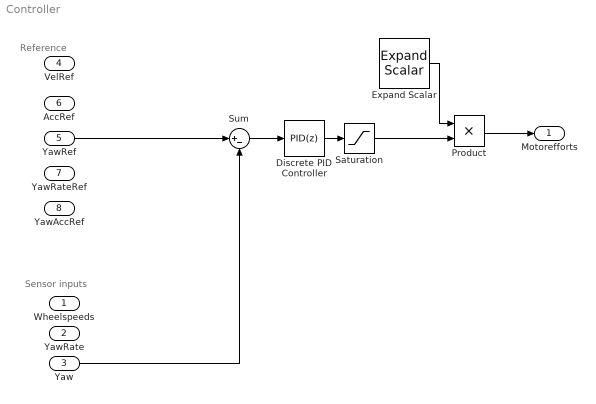
/*
 * Academic License - for use in teaching, academic research, and meeting
 * course requirements at degree granting institutions only.  Not for
 * government, commercial, or other organizational use.
 *
 * File: Controller.c
 *
 * Code generated for Simulink model 'Controller'.
 *
 * Model version                  : 1.2
 * Simulink Coder version         : 24.1 (R2024a) 19-Nov-2023
 * C/C++ source code generated on : Tue Sep 17 13:51:16 2024
 *
 * Target selection: ert.tlc
 * Embedded hardware selection: ARM Compatible->ARM Cortex-M
 * Code generation objectives:
 *    1. Execution efficiency
 *    2. RAM efficiency
 * Validation result: Not run
 */

#include "Controller.h"
#include "rtwtypes.h"

/* Block signals and states (default storage) */
DW rtDW;

/*===========*
 * Constants *
 *===========*/
#define RT_PI                          3.14159265358979323846
#define RT_PIF                         3.1415927F
#define RT_LN_10                       2.30258509299404568402
#define RT_LN_10F                      2.3025851F
#define RT_LOG10E                      0.43429448190325182765
#define RT_LOG10EF                     0.43429449F
#define RT_E                           2.7182818284590452354
#define RT_EF                          2.7182817F

/*
 * UNUSED_PARAMETER(x)
 *   Used to specify that a function parameter (argument) is required but not
 *   accessed by the function body.
 */
#ifndef UNUSED_PARAMETER
#if defined(__LCC__)
#define UNUSED_PARAMETER(x)                                      /* do nothing */
#else

/*
 * This is the semi-ANSI standard way of indicating that an
 * unused function parameter is required.
 */
#define UNUSED_PARAMETER(x)            (void) (x)
#endif
#endif

/* Model step function */
void Controller_step(real32_T arg_Wheelspeeds[4], real32_T arg_YawRate, real32_T
                     arg_Yaw, real32_T arg_VelRef[2], real32_T arg_YawRef,
                     real32_T arg_AccRef[2], real_T arg_YawRateRef, real_T
                     arg_YawAccRef, real32_T arg_Motorefforts[4])
{
  real32_T rtb_FilterCoefficient;
  real32_T rtb_Saturation;
  real32_T rtb_Sum;
  UNUSED_PARAMETER(arg_Wheelspeeds);
  UNUSED_PARAMETER(arg_YawRate);
  UNUSED_PARAMETER(arg_VelRef);
  UNUSED_PARAMETER(arg_AccRef);
  UNUSED_PARAMETER(arg_YawRateRef);
  UNUSED_PARAMETER(arg_YawAccRef);

  /* Sum: '<Root>/Sum' incorporates:
   *  Inport: '<Root>/Yaw'
   *  Inport: '<Root>/YawRef'
   */
  rtb_Sum = arg_YawRef - arg_Yaw;

  /* Gain: '<S38>/Filter Coefficient' incorporates:
   *  DiscreteIntegrator: '<S30>/Filter'
   *  Gain: '<S28>/Derivative Gain'
   *  Sum: '<S30>/SumD'
   */
  rtb_FilterCoefficient = (0.0F * rtb_Sum - rtDW.Filter_DSTATE) * 100.0F;

  /* Sum: '<S44>/Sum' incorporates:
   *  DiscreteIntegrator: '<S35>/Integrator'
   * */
  rtb_Sum += rtDW.Integrator_DSTATE;
  rtb_Saturation = rtb_Sum + rtb_FilterCoefficient;

  /* Saturate: '<Root>/Saturation' */
  if (rtb_Saturation > 0.1F) {
    rtb_Saturation = 0.1F;
  } else if (rtb_Saturation < -1.0F) {
    rtb_Saturation = -1.0F;
  }

  /* End of Saturate: '<Root>/Saturation' */

  /* Outport: '<Root>/Motorefforts' incorporates:
   *  Product: '<Root>/Product'
   */
  arg_Motorefforts[0] = rtb_Saturation;
  arg_Motorefforts[1] = rtb_Saturation;
  arg_Motorefforts[2] = rtb_Saturation;
  arg_Motorefforts[3] = rtb_Saturation;

  /* Update for DiscreteIntegrator: '<S35>/Integrator' */
  rtDW.Integrator_DSTATE = rtb_Sum;

  /* Update for DiscreteIntegrator: '<S30>/Filter' */
  rtDW.Filter_DSTATE += rtb_FilterCoefficient;
}
